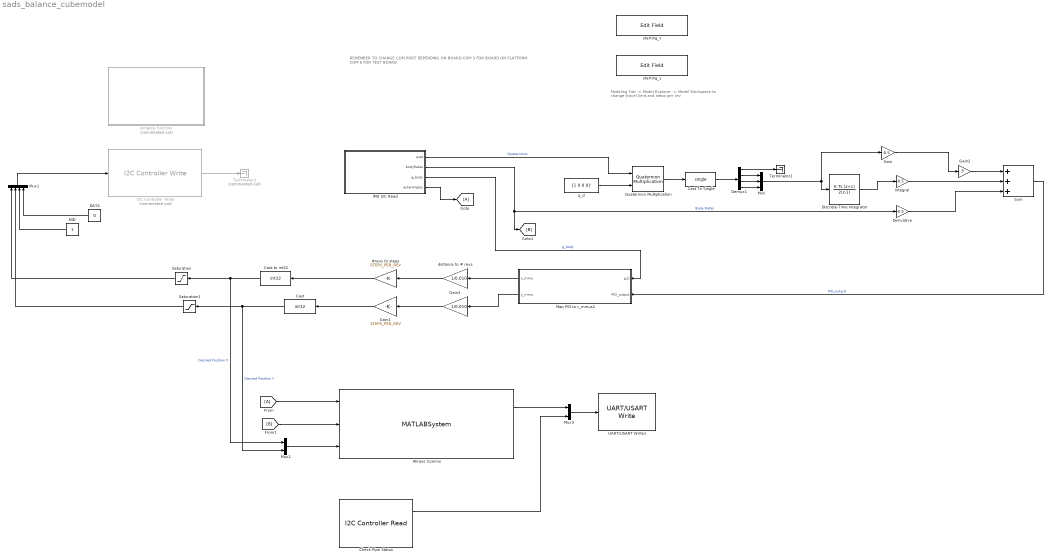
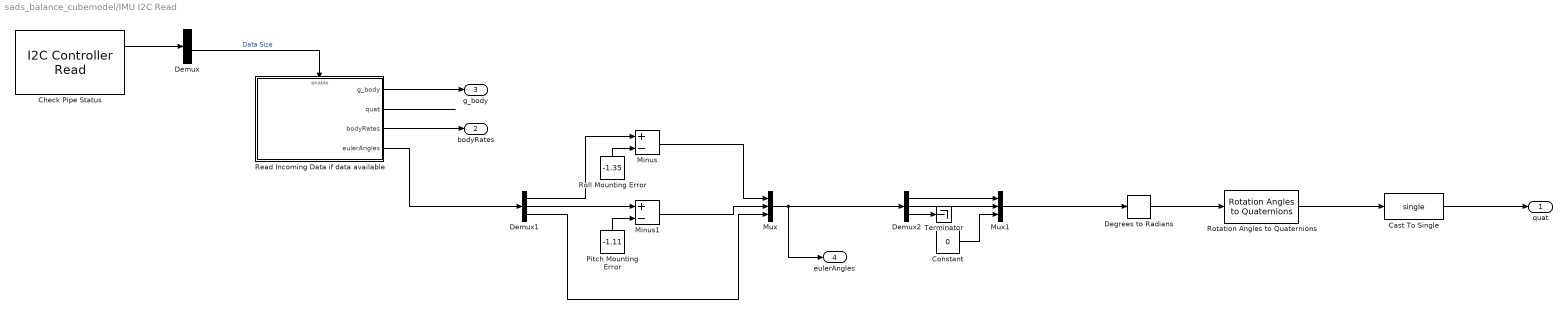
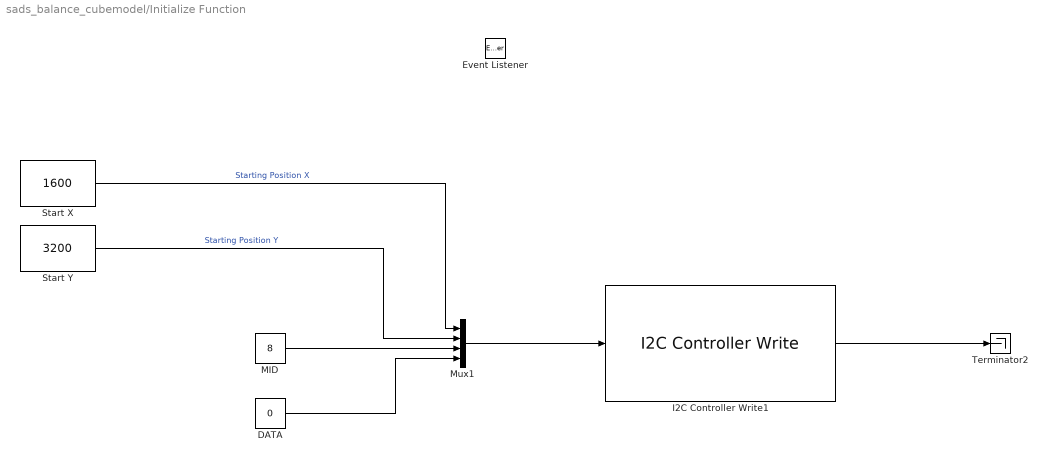
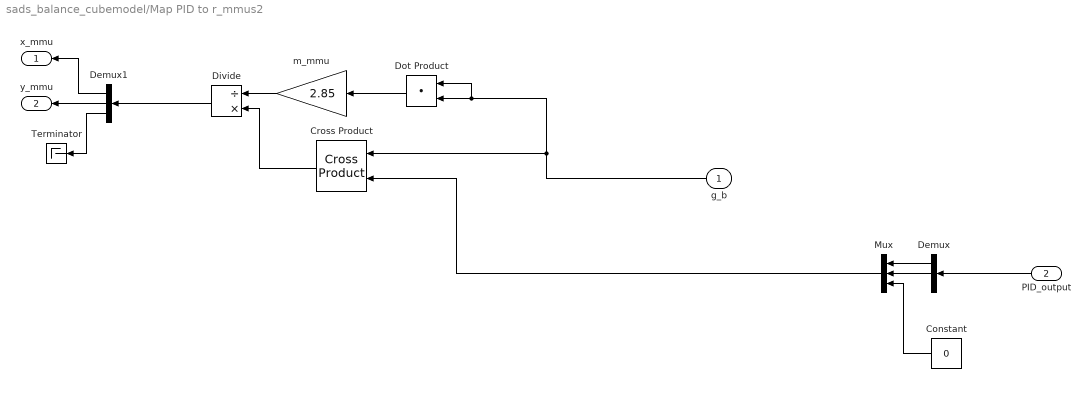
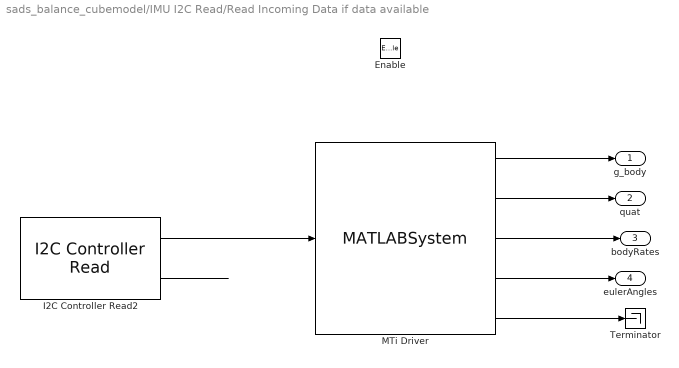
/*
 * Academic License - for use in teaching, academic research, and meeting
 * course requirements at degree granting institutions only.  Not for
 * government, commercial, or other organizational use.
 *
 * File: sads_balance_cubemodel.c
 *
 * Code generated for Simulink model 'sads_balance_cubemodel'.
 *
 * Model version                  : 7.173
 * Simulink Coder version         : 24.2 (R2024b) 21-Jun-2024
 * C/C++ source code generated on : Mon Jun 16 12:50:41 2025
 *
 * Target selection: ert.tlc
 * Embedded hardware selection: ARM Compatible->ARM Cortex
 * Code generation objectives: Unspecified
 * Validation result: Not run
 */

#include "sads_balance_cubemodel.h"
#include "sads_balance_cubemodel_types.h"
#include <string.h>
#include <math.h>
#include "rt_nonfinite.h"
#include "rtwtypes.h"
#include <stddef.h>
#include "mw_stm32_i2c_ll.h"

/* Block signals (default storage) */
B_sads_balance_cubemodel_T sads_balance_cubemodel_B;

/* Block states (default storage) */
DW_sads_balance_cubemodel_T sads_balance_cubemodel_DW;

/* Real-time model */
static RT_MODEL_sads_balance_cubemod_T sads_balance_cubemodel_M_;
RT_MODEL_sads_balance_cubemod_T *const sads_balance_cubemodel_M =
  &sads_balance_cubemodel_M_;

/* Forward declaration for local functions */
static void sads_balance_c_SystemCore_setup(stm32cube_blocks_I2CControl_f_T *obj);
static void sads_bala_I2CDrvBlock_setupImpl(stm32cube_blocks_I2CControlle_T *obj);
static void sads_balanc_UARTWrite_setupImpl(stm32cube_blocks_UARTWrite_sa_T *obj);
static void sads_balance_c_SystemCore_setup(stm32cube_blocks_I2CControl_f_T *obj)
{
  STM32_I2C_Struct_T * i2cBlockStruct_loc;
  STM32_I2C_ModuleStruct_T c;
  obj->isSetupComplete = false;

  /* Start for MATLABSystem: '<S1>/Check Pipe Status' incorporates:
   *  MATLABSystem: '<S6>/I2C Controller Read2'
   */
  obj->isInitialized = 1;
  c.instance = I2C1;
  c.txCommunicationMode = MW_I2C_COMMUNICATION_POLLING;
  c.rxCommunicationMode = MW_I2C_COMMUNICATION_POLLING;
  obj->MW_I2C_BlockStruct.h_i2c = NULL;
  obj->MW_I2C_BlockStruct.rxBufferStructPtr = NULL;
  obj->MW_I2C_BlockStruct.txBufferStructPtr = NULL;
  i2cBlockStruct_loc = (STM32_I2C_Struct_T *)(&obj->MW_I2C_BlockStruct);
  obj->MW_I2C_HANDLE = I2C_Init(&c, i2cBlockStruct_loc);
  obj->isSetupComplete = true;
}

static void sads_bala_I2CDrvBlock_setupImpl(stm32cube_blocks_I2CControlle_T *obj)
{
  STM32_I2C_Struct_T * i2cBlockStruct_loc;
  STM32_I2C_ModuleStruct_T c;

  /* Start for MATLABSystem: '<Root>/I2C Controller Write' incorporates:
   *  MATLABSystem: '<S2>/I2C Controller Write1'
   */
  c.instance = I2C2;
  c.txCommunicationMode = MW_I2C_COMMUNICATION_POLLING;
  c.rxCommunicationMode = MW_I2C_COMMUNICATION_POLLING;
  obj->MW_I2C_BlockStruct.h_i2c = NULL;
  obj->MW_I2C_BlockStruct.rxBufferStructPtr = NULL;
  obj->MW_I2C_BlockStruct.txBufferStructPtr = NULL;
  i2cBlockStruct_loc = (STM32_I2C_Struct_T *)(&obj->MW_I2C_BlockStruct);
  obj->MW_I2C_HANDLE = I2C_Init(&c, i2cBlockStruct_loc);
}

static void sads_balanc_UARTWrite_setupImpl(stm32cube_blocks_UARTWrite_sa_T *obj)
{
  UART_Type_T b;
  b.buffer.txBufferPtr = (void*)(&obj->UARTInternalBuffer[0]);

  /* Start for MATLABSystem: '<Root>/UART//USART Write1' */
  b.enableRxOrTx = 2U;
  b.mode = UART_TX_INTERRUPT_MODE;
  b.peripheralPtr = USART3;

  /* Start for MATLABSystem: '<Root>/UART//USART Write1' */
  b.txdmaPeripheralPtr = NULL;
  b.txdmastream = 0;
  b.buffer.txBufferSize = 128U;
  obj->UARTHandle = MW_UART_Initialize(&b);
}

/* Model step function */
void sads_balance_cubemodel_step(void)
{
  int32_T rtb_TmpSignalConversionAtI2CCon[4];
  int32_T b_posTx[2];
  int32_T i;
  int32_T rtb_Saturation;
  int32_T rtb_Saturation1;
  real32_T tmp[4];
  real32_T b_eulerAnglesTx[3];
  real32_T rtb_Divide[3];
  real32_T rtb_Product1_e;
  real32_T rtb_Product2_j;
  real32_T rtb_Product3_c;
  real32_T rtb_Product_tmp;
  real32_T rtb_Product_tmp_0;
  real32_T rtb_Sum;
  real32_T rtb_Sum_m;
  real32_T rtb_m_mmu;
  real32_T rtb_sincos_o1_idx_0;
  real32_T rtb_sincos_o1_idx_1;
  real32_T rtb_sincos_o1_idx_2;
  uint32_T status;
  uint16_T b_varargout_5;
  uint8_T b_bytesIn[91];
  uint8_T uartWriteData[34];
  uint8_T rtb_WiressComms_o1_0[33];
  uint8_T SwappedDataBytes[17];
  uint8_T txDataSwapLoc[16];
  uint8_T rtb_CheckPipeStatus_o1_0[4];
  uint8_T txData;

  /* MATLABSystem: '<S1>/Check Pipe Status' */
  txData = 4U;
  status = I2C_Controller_TransmitData_Polling
    (sads_balance_cubemodel_DW.obj_l.MW_I2C_HANDLE, 107, &txData, 1U, true, true,
     1U);
  if (status == 0U) {
    I2C_Controller_ReceiveData_Polling
      (sads_balance_cubemodel_DW.obj_l.MW_I2C_HANDLE, 107,
       &rtb_CheckPipeStatus_o1_0[0], 4U, false, false, 1U);
  } else {
    rtb_CheckPipeStatus_o1_0[2] = 0U;
  }

  /* Outputs for Enabled SubSystem: '<S1>/Read Incoming Data if data available' incorporates:
   *  EnablePort: '<S6>/Enable'
   */
  if (rtb_CheckPipeStatus_o1_0[2] > 0) {
    /* MATLABSystem: '<S6>/I2C Controller Read2' incorporates:
     *  MATLABSystem: '<S6>/MTi Driver'
     */
    txData = 6U;
    status = I2C_Controller_TransmitData_Polling
      (sads_balance_cubemodel_DW.obj_g.MW_I2C_HANDLE, 107, &txData, 1U, true,
       true, 1U);
    if (status == 0U) {
      I2C_Controller_ReceiveData_Polling
        (sads_balance_cubemodel_DW.obj_g.MW_I2C_HANDLE, 107, &b_bytesIn[0], 91U,
         false, false, 1U);
    } else {
      /* MATLABSystem: '<S6>/MTi Driver' */
      memset(&b_bytesIn[0], 0, 91U * sizeof(uint8_T));
    }

    /* End of MATLABSystem: '<S6>/I2C Controller Read2' */

    /* MATLABSystem: '<S6>/MTi Driver' */
    /*         %% Define input properties */
    sads_balance_cubemodel_B.MTiDriver_o1[0] = 0.0F;
    sads_balance_cubemodel_B.MTiDriver_o1[1] = 0.0F;
    sads_balance_cubemodel_B.MTiDriver_o1[2] = 0.0F;

    /* MATLABSystem: '<S6>/MTi Driver' */
    tmp[0] = 0.0F;
    tmp[1] = 0.0F;
    tmp[2] = 0.0F;
    tmp[3] = 0.0F;

    /* MATLABSystem: '<S6>/MTi Driver' */
    sads_balance_cubemodel_B.MTiDriver_o3[0] = 0.0F;

    /* MATLABSystem: '<S6>/MTi Driver' */
    sads_balance_cubemodel_B.MTiDriver_o4[0] = 0.0F;

    /* MATLABSystem: '<S6>/MTi Driver' */
    sads_balance_cubemodel_B.MTiDriver_o3[1] = 0.0F;

    /* MATLABSystem: '<S6>/MTi Driver' */
    sads_balance_cubemodel_B.MTiDriver_o4[1] = 0.0F;

    /* MATLABSystem: '<S6>/MTi Driver' */
    sads_balance_cubemodel_B.MTiDriver_o3[2] = 0.0F;

    /* MATLABSystem: '<S6>/MTi Driver' */
    sads_balance_cubemodel_B.MTiDriver_o4[2] = 0.0F;

    /* MATLABSystem: '<S6>/MTi Driver' */
    b_varargout_5 = 0U;

    /*  Call C-function implementing device output */
    MTi_Driver_Step(&b_bytesIn[0], &sads_balance_cubemodel_B.MTiDriver_o1[0],
                    &tmp[0], &sads_balance_cubemodel_B.MTiDriver_o3[0],
                    &sads_balance_cubemodel_B.MTiDriver_o4[0], &b_varargout_5);
  }

  /* End of MATLABSystem: '<S1>/Check Pipe Status' */
  /* End of Outputs for SubSystem: '<S1>/Read Incoming Data if data available' */

  /* Sum: '<S1>/Minus' incorporates:
   *  Constant: '<S1>/Roll Mounting Error'
   */
  rtb_Product1_e = sads_balance_cubemodel_B.MTiDriver_o4[0] -
    sads_balance_cubemodel_P.RollMountingError_Value;

  /* Sum: '<S1>/Minus1' incorporates:
   *  Constant: '<S1>/Pitch Mounting Error'
   */
  rtb_Product3_c = sads_balance_cubemodel_B.MTiDriver_o4[1] -
    sads_balance_cubemodel_P.PitchMountingError_Value;

  /* MATLABSystem: '<Root>/Wiress Comms' incorporates:
   *  SignalConversion generated from: '<Root>/Wiress Comms'
   */
  b_eulerAnglesTx[0] = rtb_Product1_e;
  b_eulerAnglesTx[1] = rtb_Product3_c;
  b_eulerAnglesTx[2] = sads_balance_cubemodel_B.MTiDriver_o4[2];

  /* Gain: '<S7>/1//2' incorporates:
   *  Gain: '<S5>/Gain1'
   */
  rtb_Product1_e = sads_balance_cubemodel_P.Gain1_Gain * rtb_Product1_e *
    sads_balance_cubemodel_P.u2_Gain;

  /* Trigonometry: '<S7>/sincos' */
  rtb_sincos_o1_idx_0 = (real32_T)sin(rtb_Product1_e);
  rtb_Divide[0] = (real32_T)cos(rtb_Product1_e);

  /* Gain: '<S7>/1//2' incorporates:
   *  Gain: '<S5>/Gain1'
   */
  rtb_Product1_e = sads_balance_cubemodel_P.Gain1_Gain * rtb_Product3_c *
    sads_balance_cubemodel_P.u2_Gain;

  /* Trigonometry: '<S7>/sincos' */
  rtb_sincos_o1_idx_1 = (real32_T)sin(rtb_Product1_e);
  rtb_Divide[1] = (real32_T)cos(rtb_Product1_e);

  /* Gain: '<S7>/1//2' incorporates:
   *  Constant: '<S1>/Constant'
   *  Gain: '<S5>/Gain1'
   */
  rtb_Product1_e = sads_balance_cubemodel_P.Gain1_Gain *
    sads_balance_cubemodel_P.Constant_Value_o * sads_balance_cubemodel_P.u2_Gain;

  /* Trigonometry: '<S7>/sincos' */
  rtb_sincos_o1_idx_2 = (real32_T)sin(rtb_Product1_e);
  rtb_Divide[2] = (real32_T)cos(rtb_Product1_e);

  /* Gain: '<S3>/m_mmu' incorporates:
   *  DotProduct: '<S3>/Dot Product'
   *  MATLABSystem: '<S6>/MTi Driver'
   */
  rtb_m_mmu = ((sads_balance_cubemodel_B.MTiDriver_o1[0] *
                sads_balance_cubemodel_B.MTiDriver_o1[0] +
                sads_balance_cubemodel_B.MTiDriver_o1[1] *
                sads_balance_cubemodel_B.MTiDriver_o1[1]) +
               sads_balance_cubemodel_B.MTiDriver_o1[2] *
               sads_balance_cubemodel_B.MTiDriver_o1[2]) *
    sads_balance_cubemodel_P.m_mmu_Gain;

  /* Fcn: '<S7>/q0' incorporates:
   *  Fcn: '<S7>/q3'
   */
  rtb_Product_tmp = rtb_Divide[0] * rtb_Divide[1];
  rtb_Product_tmp_0 = rtb_sincos_o1_idx_0 * rtb_sincos_o1_idx_1;
  rtb_Product3_c = rtb_Product_tmp * rtb_Divide[2] - rtb_Product_tmp_0 *
    rtb_sincos_o1_idx_2;

  /* Fcn: '<S7>/q1' incorporates:
   *  Fcn: '<S7>/q2'
   */
  rtb_sincos_o1_idx_1 *= rtb_Divide[0];
  rtb_sincos_o1_idx_0 *= rtb_Divide[1];
  rtb_Product1_e = rtb_sincos_o1_idx_1 * rtb_sincos_o1_idx_2 +
    rtb_sincos_o1_idx_0 * rtb_Divide[2];

  /* Fcn: '<S7>/q2' */
  rtb_Product2_j = rtb_sincos_o1_idx_1 * rtb_Divide[2] - rtb_sincos_o1_idx_0 *
    rtb_sincos_o1_idx_2;

  /* Fcn: '<S7>/q3' */
  rtb_sincos_o1_idx_2 = rtb_Product_tmp * rtb_sincos_o1_idx_2 +
    rtb_Product_tmp_0 * rtb_Divide[2];

  /* Sum: '<S10>/Sum' incorporates:
   *  Constant: '<Root>/q_d'
   *  Product: '<S10>/Product'
   *  Product: '<S10>/Product1'
   *  Product: '<S10>/Product2'
   *  Product: '<S10>/Product3'
   */
  rtb_Sum = ((rtb_Product3_c * sads_balance_cubemodel_P.q_d_Value[1] +
              rtb_Product1_e * sads_balance_cubemodel_P.q_d_Value[0]) +
             rtb_Product2_j * sads_balance_cubemodel_P.q_d_Value[3]) -
    rtb_sincos_o1_idx_2 * sads_balance_cubemodel_P.q_d_Value[2];

  /* Sum: '<S11>/Sum' incorporates:
   *  Constant: '<Root>/q_d'
   *  Product: '<S11>/Product'
   *  Product: '<S11>/Product1'
   *  Product: '<S11>/Product2'
   *  Product: '<S11>/Product3'
   */
  rtb_Sum_m = ((rtb_Product3_c * sads_balance_cubemodel_P.q_d_Value[2] -
                rtb_Product1_e * sads_balance_cubemodel_P.q_d_Value[3]) +
               rtb_Product2_j * sads_balance_cubemodel_P.q_d_Value[0]) +
    rtb_sincos_o1_idx_2 * sads_balance_cubemodel_P.q_d_Value[1];

  /* DiscreteIntegrator: '<Root>/Discrete-Time Integrator' */
  rtb_Product_tmp = sads_balance_cubemodel_P.DiscreteTimeIntegrator_gainval *
    rtb_Sum;

  /* DiscreteIntegrator: '<Root>/Discrete-Time Integrator' */
  rtb_sincos_o1_idx_0 = rtb_Product_tmp +
    sads_balance_cubemodel_DW.DiscreteTimeIntegrator_DSTATE[0];

  /* DiscreteIntegrator: '<Root>/Discrete-Time Integrator' */
  rtb_Product_tmp_0 = sads_balance_cubemodel_P.DiscreteTimeIntegrator_gainval *
    rtb_Sum_m;

  /* DiscreteIntegrator: '<Root>/Discrete-Time Integrator' */
  rtb_sincos_o1_idx_1 = rtb_Product_tmp_0 +
    sads_balance_cubemodel_DW.DiscreteTimeIntegrator_DSTATE[1];

  /* Sum: '<Root>/Sum' incorporates:
   *  Gain: '<Root>/Derivative'
   *  Gain: '<Root>/Gain'
   *  Gain: '<Root>/Gain2'
   *  Gain: '<Root>/Integral'
   *  MATLABSystem: '<S6>/MTi Driver'
   *  Product: '<S3>/Divide'
   */
  rtb_Divide[0] = (sads_balance_cubemodel_P.Gain_Gain * rtb_Sum *
                   sads_balance_cubemodel_P.Gain2_Gain +
                   sads_balance_cubemodel_P.Integral_Gain * rtb_sincos_o1_idx_0)
    + sads_balance_cubemodel_P.Derivative_Gain *
    sads_balance_cubemodel_B.MTiDriver_o3[0];
  rtb_Divide[1] = (sads_balance_cubemodel_P.Gain_Gain * rtb_Sum_m *
                   sads_balance_cubemodel_P.Gain2_Gain +
                   sads_balance_cubemodel_P.Integral_Gain * rtb_sincos_o1_idx_1)
    + sads_balance_cubemodel_P.Derivative_Gain *
    sads_balance_cubemodel_B.MTiDriver_o3[1];

  /* Product: '<S8>/Element Product' */
  rtb_Sum = rtb_Divide[0] * sads_balance_cubemodel_B.MTiDriver_o1[2];

  /* Product: '<S3>/Divide' incorporates:
   *  Constant: '<S3>/Constant'
   *  Product: '<S8>/Element Product'
   *  Sum: '<S8>/Sum'
   */
  rtb_Divide[0] = (sads_balance_cubemodel_B.MTiDriver_o1[1] *
                   sads_balance_cubemodel_P.Constant_Value - rtb_Divide[1] *
                   sads_balance_cubemodel_B.MTiDriver_o1[2]) * (1.0F / rtb_m_mmu);
  rtb_Divide[1] = (rtb_Sum - sads_balance_cubemodel_B.MTiDriver_o1[0] *
                   sads_balance_cubemodel_P.Constant_Value) * (1.0F / rtb_m_mmu);

  /* DataTypeConversion: '<Root>/Cast' incorporates:
   *  Gain: '<Root>/Gain1'
   *  Gain: '<Root>/Gain3'
   */
  rtb_m_mmu = (real32_T)floor(sads_balance_cubemodel_P.Gain3_Gain * rtb_Divide[1]
    * sads_balance_cubemodel_P.STEPS_PER_REV);
  if (rtIsNaNF(rtb_m_mmu) || rtIsInfF(rtb_m_mmu)) {
    rtb_m_mmu = 0.0F;
  } else {
    rtb_m_mmu = (real32_T)fmod(rtb_m_mmu, 4.294967296E+9);
  }

  rtb_Saturation1 = rtb_m_mmu < 0.0F ? -(int32_T)(uint32_T)-rtb_m_mmu : (int32_T)
    (uint32_T)rtb_m_mmu;

  /* End of DataTypeConversion: '<Root>/Cast' */

  /* DataTypeConversion: '<Root>/Cast to int32' incorporates:
   *  Gain: '<Root>/#revs to steps'
   *  Gain: '<Root>/distance to # revs'
   */
  rtb_m_mmu = (real32_T)floor(sads_balance_cubemodel_P.distancetorevs_Gain *
    rtb_Divide[0] * sads_balance_cubemodel_P.STEPS_PER_REV);
  if (rtIsNaNF(rtb_m_mmu) || rtIsInfF(rtb_m_mmu)) {
    rtb_m_mmu = 0.0F;
  } else {
    rtb_m_mmu = (real32_T)fmod(rtb_m_mmu, 4.294967296E+9);
  }

  rtb_Saturation = rtb_m_mmu < 0.0F ? -(int32_T)(uint32_T)-rtb_m_mmu : (int32_T)
    (uint32_T)rtb_m_mmu;

  /* End of DataTypeConversion: '<Root>/Cast to int32' */

  /* MATLABSystem: '<Root>/Wiress Comms' incorporates:
   *  MATLABSystem: '<S6>/MTi Driver'
   *  SignalConversion generated from: '<Root>/Wiress Comms'
   */
  /*         %% Define input properties */
  for (i = 0; i < 33; i++) {
    rtb_WiressComms_o1_0[i] = 0U;
  }

  /*  Call C-function implementing device output */
  rtb_Divide[0] = sads_balance_cubemodel_B.MTiDriver_o3[0];
  rtb_Divide[1] = sads_balance_cubemodel_B.MTiDriver_o3[1];
  rtb_Divide[2] = sads_balance_cubemodel_B.MTiDriver_o3[2];
  b_posTx[0] = rtb_Saturation;
  b_posTx[1] = rtb_Saturation1;
  Comm_Driver_Step(&b_eulerAnglesTx[0], &rtb_Divide[0], &b_posTx[0],
                   &rtb_WiressComms_o1_0[0]);

  /* Saturate: '<Root>/Saturation' */
  if (rtb_Saturation > sads_balance_cubemodel_P.Saturation_UpperSat) {
    /* SignalConversion generated from: '<Root>/I2C Controller Write' */
    rtb_TmpSignalConversionAtI2CCon[0] =
      sads_balance_cubemodel_P.Saturation_UpperSat;
  } else if (rtb_Saturation < sads_balance_cubemodel_P.Saturation_LowerSat) {
    /* SignalConversion generated from: '<Root>/I2C Controller Write' */
    rtb_TmpSignalConversionAtI2CCon[0] =
      sads_balance_cubemodel_P.Saturation_LowerSat;
  } else {
    /* SignalConversion generated from: '<Root>/I2C Controller Write' */
    rtb_TmpSignalConversionAtI2CCon[0] = rtb_Saturation;
  }

  /* End of Saturate: '<Root>/Saturation' */

  /* Saturate: '<Root>/Saturation1' */
  if (rtb_Saturation1 > sads_balance_cubemodel_P.Saturation1_UpperSat) {
    /* SignalConversion generated from: '<Root>/I2C Controller Write' */
    rtb_TmpSignalConversionAtI2CCon[1] =
      sads_balance_cubemodel_P.Saturation1_UpperSat;
  } else if (rtb_Saturation1 < sads_balance_cubemodel_P.Saturation1_LowerSat) {
    /* SignalConversion generated from: '<Root>/I2C Controller Write' */
    rtb_TmpSignalConversionAtI2CCon[1] =
      sads_balance_cubemodel_P.Saturation1_LowerSat;
  } else {
    /* SignalConversion generated from: '<Root>/I2C Controller Write' */
    rtb_TmpSignalConversionAtI2CCon[1] = rtb_Saturation1;
  }

  /* End of Saturate: '<Root>/Saturation1' */

  /* SignalConversion generated from: '<Root>/I2C Controller Write' incorporates:
   *  Constant: '<Root>/DATA'
   *  Constant: '<Root>/MID'
   */
  rtb_TmpSignalConversionAtI2CCon[2] = sads_balance_cubemodel_P.MID_Value_d;
  rtb_TmpSignalConversionAtI2CCon[3] = sads_balance_cubemodel_P.DATA_Value_b;

  /* MATLABSystem: '<Root>/I2C Controller Write' */
  memcpy((void *)&txDataSwapLoc[0], (void *)&rtb_TmpSignalConversionAtI2CCon[0],
         (size_t)16 * sizeof(uint8_T));
  SwappedDataBytes[0] = 0U;
  for (i = 0; i < 16; i++) {
    SwappedDataBytes[i + 1] = txDataSwapLoc[i];
  }

  I2C_Controller_TransmitData_Polling
    (sads_balance_cubemodel_DW.obj_a3.MW_I2C_HANDLE, 66, &SwappedDataBytes[0],
     17U, false, false, 2U);

  /* End of MATLABSystem: '<Root>/I2C Controller Write' */

  /* MATLABSystem: '<Root>/UART//USART Write1' incorporates:
   *  MATLABSystem: '<Root>/Wiress Comms'
   *  SignalConversion generated from: '<Root>/UART//USART Write1'
   */
  for (i = 0; i < 33; i++) {
    uartWriteData[i] = rtb_WiressComms_o1_0[i];
  }

  uartWriteData[33] = 0U;
  MW_UART_TransmitUsingInterrupt(sads_balance_cubemodel_DW.obj.UARTHandle,
    &uartWriteData[0], 34U, 0U, &status);

  /* End of MATLABSystem: '<Root>/UART//USART Write1' */

  /* Update for DiscreteIntegrator: '<Root>/Discrete-Time Integrator' */
  sads_balance_cubemodel_DW.DiscreteTimeIntegrator_DSTATE[0] = rtb_Product_tmp +
    rtb_sincos_o1_idx_0;
  sads_balance_cubemodel_DW.DiscreteTimeIntegrator_DSTATE[1] = rtb_Product_tmp_0
    + rtb_sincos_o1_idx_1;

  /* DiscreteIntegrator: '<Root>/Discrete-Time Integrator' incorporates:
   *  Constant: '<Root>/q_d'
   *  Product: '<S12>/Product'
   *  Product: '<S12>/Product1'
   *  Product: '<S12>/Product2'
   *  Product: '<S12>/Product3'
   *  Sum: '<S12>/Sum'
   */
  rtb_Product1_e = (((rtb_Product3_c * sads_balance_cubemodel_P.q_d_Value[3] +
                      rtb_Product1_e * sads_balance_cubemodel_P.q_d_Value[2]) -
                     rtb_Product2_j * sads_balance_cubemodel_P.q_d_Value[1]) +
                    rtb_sincos_o1_idx_2 * sads_balance_cubemodel_P.q_d_Value[0])
    * sads_balance_cubemodel_P.DiscreteTimeIntegrator_gainval;

  /* Update for DiscreteIntegrator: '<Root>/Discrete-Time Integrator' */
  sads_balance_cubemodel_DW.DiscreteTimeIntegrator_DSTATE[2] = (rtb_Product1_e +
    sads_balance_cubemodel_DW.DiscreteTimeIntegrator_DSTATE[2]) + rtb_Product1_e;
}
